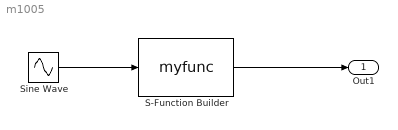
/*
 * m1005.c
 * 
 * Real-Time Workshop code generation for Simulink model "m1005.mdl".
 *
 * Model Version              : 1.1
 * Real-Time Workshop version : 6.1  (R14SP1)  05-Sep-2004
 * C source code generated on : Sun Apr 03 16:31:13 2005
 */

#include "m1005.h"
#include "m1005_private.h"

/* Block signals (auto storage) */
BlockIO_m1005 m1005_B;

/* External output (root outports fed by signals with auto storage) */
ExternalOutputs_m1005 m1005_Y;

/* Real-time model */
rtModel_m1005 m1005_M_;
rtModel_m1005 *m1005_M = &m1005_M_;

/* Model output function */
static void m1005_output(int_T tid)
{

  /* Sin: '<Root>/Sine Wave' */
  m1005_B.SineWave = m1005_P.SineWave_Amp *
    sin(m1005_P.SineWave_Freq * m1005_M->Timing.t[0] + m1005_P.SineWave_Phase) +
    m1005_P.SineWave_Bias;

  m1005_B.SFunctionBuilder= 2.0*m1005_B.SineWave;

  /* Outport: '<Root>/Out1' */
  m1005_Y.Out1 = m1005_B.SFunctionBuilder;
}

/* Model update function */
static void m1005_update(int_T tid)
{

  /* Update absolute time for base rate */

  if(!(++m1005_M->Timing.clockTick0)) ++m1005_M->Timing.clockTickH0;
  m1005_M->Timing.t[0] = m1005_M->Timing.clockTick0 * m1005_M->Timing.stepSize0
    + m1005_M->Timing.clockTickH0 * m1005_M->Timing.stepSize0 * 4294967296.0;

  {
    /* Update absolute timer for sample time: [0.1s, 0.0s] */

    if(!(++m1005_M->Timing.clockTick1)) ++m1005_M->Timing.clockTickH1;
    m1005_M->Timing.t[1] = m1005_M->Timing.clockTick1 *
      m1005_M->Timing.stepSize1 + m1005_M->Timing.clockTickH1 *
      m1005_M->Timing.stepSize1 * 4294967296.0;
  }
}
